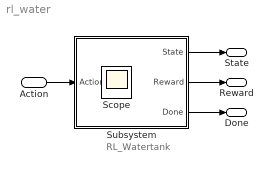
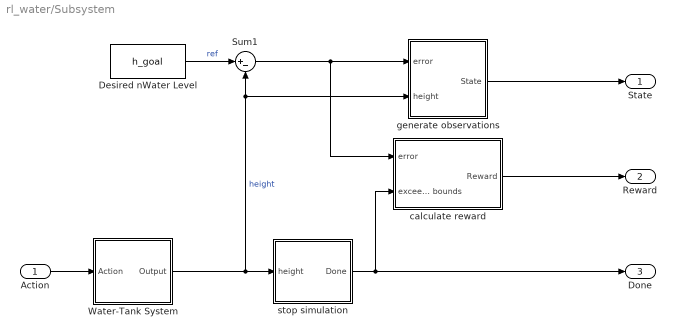
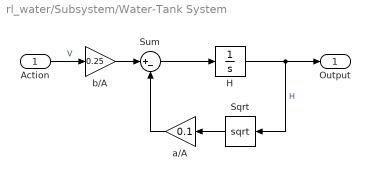
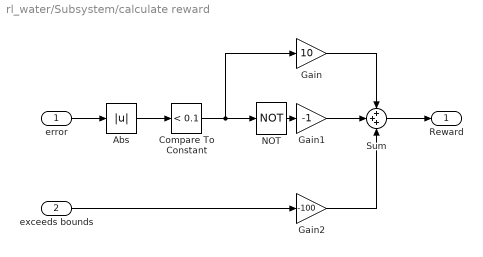
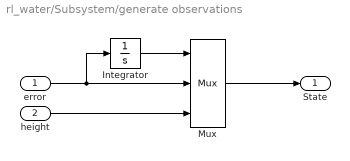
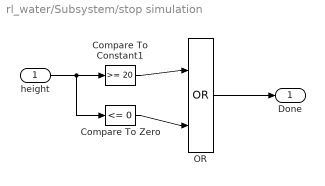
/*
 * Academic License - for use in teaching, academic research, and meeting
 * course requirements at degree granting institutions only.  Not for
 * government, commercial, or other organizational use.
 *
 * File: rl_water.cpp
 *
 * Code generated for Simulink model 'rl_water'.
 *
 * Model version                  : 11.18
 * Simulink Coder version         : 24.2 (R2024b) 21-Jun-2024
 * C/C++ source code generated on : Tue Jun 30 00:53:43 2026
 *
 * Target selection: ert.tlc
 * Embedded hardware selection: Specified
 * Code generation objective: Execution efficiency
 * Validation result: Not run
 */

#include "rl_water.h"
#include <cmath>
#include "rtwtypes.h"
#include "rl_water_private.h"

/*
 * This function updates continuous states using the ODE3 fixed-step
 * solver algorithm
 */
void rl_water::rt_ertODEUpdateContinuousStates(RTWSolverInfo *si )
{
  /* Solver Matrices */
  static const real_T rt_ODE3_A[3]{
    1.0/2.0, 3.0/4.0, 1.0
  };

  static const real_T rt_ODE3_B[3][3]{
    { 1.0/2.0, 0.0, 0.0 },

    { 0.0, 3.0/4.0, 0.0 },

    { 2.0/9.0, 1.0/3.0, 4.0/9.0 }
  };

  time_T t { rtsiGetT(si) };

  time_T tnew { rtsiGetSolverStopTime(si) };

  time_T h { rtsiGetStepSize(si) };

  real_T *x { rtsiGetContStates(si) };

  ODE3_IntgData *id { static_cast<ODE3_IntgData *>(rtsiGetSolverData(si)) };

  real_T *y { id->y };

  real_T *f0 { id->f[0] };

  real_T *f1 { id->f[1] };

  real_T *f2 { id->f[2] };

  real_T hB[3];
  int_T i;
  int_T nXc { 2 };

  rtsiSetSimTimeStep(si,MINOR_TIME_STEP);

  /* Save the state values at time t in y, we'll use x as ynew. */
  (void) std::memcpy(y, x,
                     static_cast<uint_T>(nXc)*sizeof(real_T));

  /* Assumes that rtsiSetT and ModelOutputs are up-to-date */
  /* f0 = f(t,y) */
  rtsiSetdX(si, f0);
  rl_water_derivatives();

  /* f(:,2) = feval(odefile, t + hA(1), y + f*hB(:,1), args(:)(*)); */
  hB[0] = h * rt_ODE3_B[0][0];
  for (i = 0; i < nXc; i++) {
    x[i] = y[i] + (f0[i]*hB[0]);
  }

  rtsiSetT(si, t + h*rt_ODE3_A[0]);
  rtsiSetdX(si, f1);
  this->step();
  rl_water_derivatives();

  /* f(:,3) = feval(odefile, t + hA(2), y + f*hB(:,2), args(:)(*)); */
  for (i = 0; i <= 1; i++) {
    hB[i] = h * rt_ODE3_B[1][i];
  }

  for (i = 0; i < nXc; i++) {
    x[i] = y[i] + (f0[i]*hB[0] + f1[i]*hB[1]);
  }

  rtsiSetT(si, t + h*rt_ODE3_A[1]);
  rtsiSetdX(si, f2);
  this->step();
  rl_water_derivatives();

  /* tnew = t + hA(3);
     ynew = y + f*hB(:,3); */
  for (i = 0; i <= 2; i++) {
    hB[i] = h * rt_ODE3_B[2][i];
  }

  for (i = 0; i < nXc; i++) {
    x[i] = y[i] + (f0[i]*hB[0] + f1[i]*hB[1] + f2[i]*hB[2]);
  }

  rtsiSetT(si, tnew);
  rtsiSetSimTimeStep(si,MAJOR_TIME_STEP);
}

/* Model step function */
void rl_water::step()
{
  int8_T rtb_Gain1;
  uint8_T rtb_Gain;
  boolean_T rtb_OR;
  if ((&rl_water_M)->isMajorTimeStep()) {
    /* set solver stop time */
    rtsiSetSolverStopTime(&(&rl_water_M)->solverInfo,(((&rl_water_M)
      ->Timing.clockTick0+1)*(&rl_water_M)->Timing.stepSize0));
  }                                    /* end MajorTimeStep */

  /* Update absolute time of base rate at minor time step */
  if ((&rl_water_M)->isMinorTimeStep()) {
    (&rl_water_M)->Timing.t[0] = rtsiGetT(&(&rl_water_M)->solverInfo);
  }

  /* Integrator: '<S4>/Integrator' */
  /* Limited  Integrator  */
  if (rl_water_X.Integrator_CSTATE >= 10.0) {
    rl_water_X.Integrator_CSTATE = 10.0;
  } else if (rl_water_X.Integrator_CSTATE <= -10.0) {
    rl_water_X.Integrator_CSTATE = -10.0;
  }

  /* Integrator: '<S2>/H' */
  /* Limited  Integrator  */
  if ((!(rl_water_X.H_CSTATE >= (rtInf))) && (rl_water_X.H_CSTATE <= 0.0)) {
    rl_water_X.H_CSTATE = 0.0;
  }

  /* Sum: '<S1>/Sum1' incorporates:
   *  Constant: '<S1>/Desired nWater Level'
   *  Integrator: '<S2>/H'
   */
  rl_water_B.Sum1 = rl_water_InstP.h_goal - rl_water_X.H_CSTATE;

  /* Outport: '<Root>/State' incorporates:
   *  Integrator: '<S2>/H'
   *  Integrator: '<S4>/Integrator'
   */
  rl_water_Y.State[0] = rl_water_X.Integrator_CSTATE;
  rl_water_Y.State[1] = rl_water_B.Sum1;
  rl_water_Y.State[2] = rl_water_X.H_CSTATE;

  /* RelationalOperator: '<S6>/Compare' incorporates:
   *  Abs: '<S3>/Abs'
   *  Constant: '<S6>/Constant'
   */
  rtb_OR = (std::abs(rl_water_B.Sum1) < 0.1);

  /* Gain: '<S3>/Gain' */
  rtb_Gain = static_cast<uint8_T>(rtb_OR ? 160 : 0);

  /* Gain: '<S3>/Gain1' incorporates:
   *  Logic: '<S3>/NOT'
   */
  rtb_Gain1 = static_cast<int8_T>(!rtb_OR ? -128 : 0);

  /* Logic: '<S5>/OR' incorporates:
   *  Constant: '<S7>/Constant'
   *  Constant: '<S8>/Constant'
   *  Integrator: '<S2>/H'
   *  RelationalOperator: '<S7>/Compare'
   *  RelationalOperator: '<S8>/Compare'
   */
  rtb_OR = ((rl_water_X.H_CSTATE >= 20.0) || (rl_water_X.H_CSTATE <= 0.0));

  /* Outport: '<Root>/Reward' incorporates:
   *  Gain: '<S3>/Gain'
   *  Gain: '<S3>/Gain1'
   *  Gain: '<S3>/Gain2'
   *  Sum: '<S3>/Sum'
   */
  rl_water_Y.Reward = (static_cast<real_T>(rtb_Gain) * 0.0625 + static_cast<
                       real_T>(rtb_Gain1) * 0.0078125) + static_cast<real_T>
    (rtb_OR ? -100 : 0);

  /* Outport: '<Root>/Done' */
  rl_water_Y.Done = rtb_OR;

  /* Sum: '<S2>/Sum' incorporates:
   *  Gain: '<S2>/a//A'
   *  Gain: '<S2>/b//A'
   *  Inport: '<Root>/Action'
   *  Integrator: '<S2>/H'
   *  Sqrt: '<S2>/Sqrt'
   */
  rl_water_B.Sum = 0.25 * rl_water_U.Action - 0.1 * std::sqrt
    (rl_water_X.H_CSTATE);
  if ((&rl_water_M)->isMajorTimeStep()) {
    rt_ertODEUpdateContinuousStates(&(&rl_water_M)->solverInfo);

    /* Update absolute time for base rate */
    /* The "clockTick0" counts the number of times the code of this task has
     * been executed. The absolute time is the multiplication of "clockTick0"
     * and "Timing.stepSize0". Size of "clockTick0" ensures timer will not
     * overflow during the application lifespan selected.
     */
    ++(&rl_water_M)->Timing.clockTick0;
    (&rl_water_M)->Timing.t[0] = rtsiGetSolverStopTime(&(&rl_water_M)
      ->solverInfo);

    {
      /* Update absolute timer for sample time: [1.0s, 0.0s] */
      /* The "clockTick1" counts the number of times the code of this task has
       * been executed. The resolution of this integer timer is 1.0, which is the step size
       * of the task. Size of "clockTick1" ensures timer will not overflow during the
       * application lifespan selected.
       */
      (&rl_water_M)->Timing.clockTick1++;
    }
  }                                    /* end MajorTimeStep */
}
